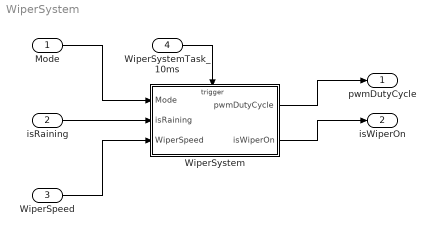
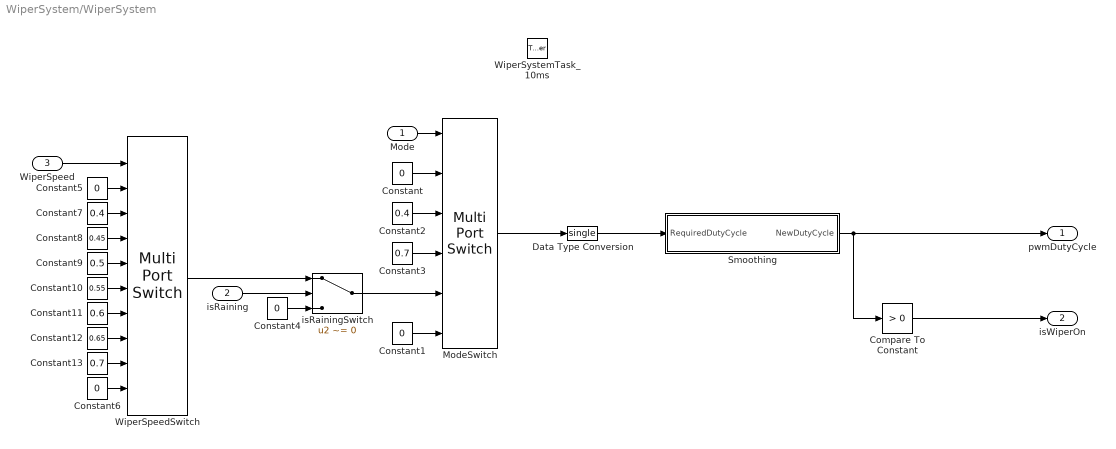
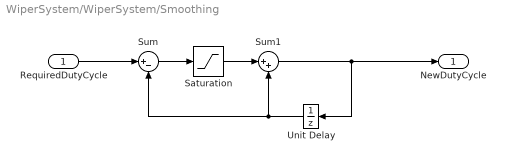
/*
 * File: WiperSystem.c
 *
 * Code generated for Simulink model 'WiperSystem'.
 *
 * Model version                  : 1.17
 * Simulink Coder version         : 9.9 (R2023a) 19-Nov-2022
 * C/C++ source code generated on : Fri Feb  9 03:00:06 2024
 *
 * Target selection: ert.tlc
 * Embedded hardware selection: ARM Compatible->ARM Cortex-M
 * Code generation objectives:
 *    1. Execution efficiency
 *    2. RAM efficiency
 * Validation result: Not run
 */

#include "WiperSystem.h"
#include "rtwtypes.h"

/* External inputs (root inport signals with default storage) */
ExtU rtU;

/* External outputs (root outports fed by signals with default storage) */
ExtY rtY;

/* Real-time model */
static RT_MODEL rtM_;
RT_MODEL *const rtM = &rtM_;

/* Model step function */
void WiperSystemTask_10ms(void)
{
  real_T rtb_ModeSwitch;
  real32_T u0;

  /* RootInportFunctionCallGenerator generated from: '<Root>/WiperSystemTask_10ms' incorporates:
   *  SubSystem: '<Root>/WiperSystem'
   */
  /* MultiPortSwitch: '<S1>/ModeSwitch' incorporates:
   *  Constant: '<S1>/Constant'
   *  Constant: '<S1>/Constant1'
   *  Constant: '<S1>/Constant2'
   *  Constant: '<S1>/Constant3'
   *  Inport: '<Root>/Mode'
   */
  switch (rtU.Mode) {
   case 0:
    rtb_ModeSwitch = 0.0;
    break;

   case 1:
    rtb_ModeSwitch = 0.4;
    break;

   case 2:
    rtb_ModeSwitch = 0.7;
    break;

   case 3:
    /* Switch: '<S1>/isRainingSwitch' incorporates:
     *  Constant: '<S1>/Constant4'
     *  Inport: '<Root>/isRaining'
     */
    if (rtU.isRaining) {
      /* MultiPortSwitch: '<S1>/WiperSpeedSwitch' incorporates:
       *  Constant: '<S1>/Constant10'
       *  Constant: '<S1>/Constant11'
       *  Constant: '<S1>/Constant12'
       *  Constant: '<S1>/Constant13'
       *  Constant: '<S1>/Constant5'
       *  Constant: '<S1>/Constant6'
       *  Constant: '<S1>/Constant7'
       *  Constant: '<S1>/Constant8'
       *  Constant: '<S1>/Constant9'
       *  Inport: '<Root>/WiperSpeed'
       */
      switch (rtU.WiperSpeed) {
       case 0:
        rtb_ModeSwitch = 0.0;
        break;

       case 1:
        rtb_ModeSwitch = 0.4;
        break;

       case 2:
        rtb_ModeSwitch = 0.45;
        break;

       case 3:
        rtb_ModeSwitch = 0.5;
        break;

       case 4:
        rtb_ModeSwitch = 0.55;
        break;

       case 5:
        rtb_ModeSwitch = 0.6;
        break;

       case 6:
        rtb_ModeSwitch = 0.65;
        break;

       case 7:
        rtb_ModeSwitch = 0.7;
        break;

       default:
        rtb_ModeSwitch = 0.0;
        break;
      }

      /* End of MultiPortSwitch: '<S1>/WiperSpeedSwitch' */
    } else {
      rtb_ModeSwitch = 0.0;
    }

    /* End of Switch: '<S1>/isRainingSwitch' */
    break;

   default:
    rtb_ModeSwitch = 0.0;
    break;
  }

  /* End of MultiPortSwitch: '<S1>/ModeSwitch' */

  /* Sum: '<S3>/Sum' incorporates:
   *  DataTypeConversion: '<S1>/Data Type Conversion'
   *  UnitDelay: '<S3>/Unit Delay'
   */
  u0 = (real32_T)rtb_ModeSwitch - rtY.pwmDutyCycle;

  /* Saturate: '<S3>/Saturation' */
  if (u0 > 0.0025F) {
    u0 = 0.0025F;
  } else if (u0 < -0.0025F) {
    u0 = -0.0025F;
  }

  /* Outport: '<Root>/pwmDutyCycle' incorporates:
   *  Saturate: '<S3>/Saturation'
   *  Sum: '<S3>/Sum1'
   *  UnitDelay: '<S3>/Unit Delay'
   */
  rtY.pwmDutyCycle += u0;

  /* Outport: '<Root>/isWiperOn' incorporates:
   *  Constant: '<S2>/Constant'
   *  Outport: '<Root>/pwmDutyCycle'
   *  RelationalOperator: '<S2>/Compare'
   */
  rtY.isWiperOn = (rtY.pwmDutyCycle > 0.0F);

  /* End of Outputs for RootInportFunctionCallGenerator generated from: '<Root>/WiperSystemTask_10ms' */
}
